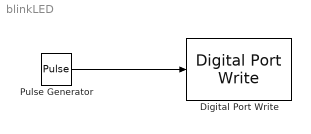
/*
 * File: blinkLED.c
 *
 * Code generated for Simulink model 'blinkLED'.
 *
 * Model version                  : 1.1
 * Simulink Coder version         : 24.1 (R2024a) 19-Nov-2023
 * C/C++ source code generated on : Tue Apr 22 14:37:34 2025
 *
 * Target selection: ert.tlc
 * Embedded hardware selection: ARM Compatible->ARM Cortex-M
 * Code generation objectives: Unspecified
 * Validation result: Not run
 */

#include "blinkLED.h"
#include "rtwtypes.h"
#include "blinkLED_private.h"

/* Block states (default storage) */
DW_blinkLED_T blinkLED_DW;

/* Real-time model */
static RT_MODEL_blinkLED_T blinkLED_M_;
RT_MODEL_blinkLED_T *const blinkLED_M = &blinkLED_M_;

/* Model step function */
void blinkLED_step(void)
{
  GPIO_TypeDef * portNameLoc;
  real_T rtb_PulseGenerator;
  int32_T c;

  /* DiscretePulseGenerator: '<Root>/Pulse Generator' */
  rtb_PulseGenerator = (blinkLED_DW.clockTickCounter <
                        blinkLED_P.PulseGenerator_Duty) &&
    (blinkLED_DW.clockTickCounter >= 0) ? blinkLED_P.PulseGenerator_Amp : 0.0;
  if (blinkLED_DW.clockTickCounter >= blinkLED_P.PulseGenerator_Period - 1.0) {
    blinkLED_DW.clockTickCounter = 0;
  } else {
    blinkLED_DW.clockTickCounter++;
  }

  /* End of DiscretePulseGenerator: '<Root>/Pulse Generator' */

  /* MATLABSystem: '<S3>/Digital Port Write' */
  portNameLoc = GPIOC;
  if (rtb_PulseGenerator != 0.0) {
    c = 1024;
  } else {
    c = 0;
  }

  LL_GPIO_SetOutputPin(portNameLoc, (uint32_T)c);
  LL_GPIO_ResetOutputPin(portNameLoc, ~(uint32_T)c & 1024U);

  /* End of MATLABSystem: '<S3>/Digital Port Write' */

  /* Update absolute time for base rate */
  /* The "clockTick0" counts the number of times the code of this task has
   * been executed. The absolute time is the multiplication of "clockTick0"
   * and "Timing.stepSize0". Size of "clockTick0" ensures timer will not
   * overflow during the application lifespan selected.
   */
  blinkLED_M->Timing.taskTime0 =
    ((time_T)(++blinkLED_M->Timing.clockTick0)) * blinkLED_M->Timing.stepSize0;
}
